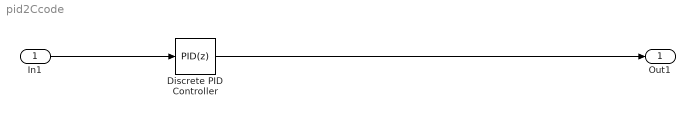
/*
 * File: pid2Ccode.c
 *
 * Code generated for Simulink model 'pid2Ccode'.
 *
 * Model version                  : 1.6
 * Simulink Coder version         : 8.4 (R2013a) 13-Feb-2013
 * TLC version                    : 8.4 (Jan 18 2013)
 * C/C++ source code generated on : Wed Aug 13 07:34:59 2014
 *
 * Target selection: ert.tlc
 * Embedded hardware selection: ARM Compatible->ARM Cortex
 * Code generation objectives: Unspecified
 * Validation result: Not run
 */

#include "pid2Ccode.h"
#include "pid2Ccode_private.h"

/* Block signals (auto storage) */
B_pid2Ccode_T pid2Ccode_B;

/* Block states (auto storage) */
DW_pid2Ccode_T pid2Ccode_DW;

/* External inputs (root inport signals with auto storage) */
ExtU_pid2Ccode_T pid2Ccode_U;

/* External outputs (root outports fed by signals with auto storage) */
ExtY_pid2Ccode_T pid2Ccode_Y;

/* Model step function */
void pid2Ccode_step(void)
{
  /* Gain: '<S1>/Proportional Gain' incorporates:
   *  Inport: '<Root>/In1'
   */
  pid2Ccode_B.ProportionalGain = pid2Ccode_P.ProportionalGain_Gain *
    pid2Ccode_U.In1;

  /* DiscreteIntegrator: '<S1>/Integrator' */
  pid2Ccode_B.Integrator = pid2Ccode_DW.Integrator_DSTATE;

  /* Gain: '<S1>/Derivative Gain' incorporates:
   *  Inport: '<Root>/In1'
   */
  pid2Ccode_B.DerivativeGain = pid2Ccode_P.DerivativeGain_Gain * pid2Ccode_U.In1;

  /* DiscreteIntegrator: '<S1>/Filter' */
  pid2Ccode_B.Filter = pid2Ccode_DW.Filter_DSTATE;

  /* Sum: '<S1>/SumD' */
  pid2Ccode_B.SumD = pid2Ccode_B.DerivativeGain - pid2Ccode_B.Filter;

  /* Gain: '<S1>/Filter Coefficient' */
  pid2Ccode_B.FilterCoefficient = pid2Ccode_P.FilterCoefficient_Gain *
    pid2Ccode_B.SumD;

  /* Outport: '<Root>/Out1' incorporates:
   *  Sum: '<S1>/Sum'
   */
  pid2Ccode_Y.Out1 = (pid2Ccode_B.ProportionalGain + pid2Ccode_B.Integrator) +
    pid2Ccode_B.FilterCoefficient;

  /* Gain: '<S1>/Integral Gain' incorporates:
   *  Inport: '<Root>/In1'
   */
  pid2Ccode_B.IntegralGain = pid2Ccode_P.IntegralGain_Gain * pid2Ccode_U.In1;

  /* Update for DiscreteIntegrator: '<S1>/Integrator' */
  pid2Ccode_DW.Integrator_DSTATE = pid2Ccode_DW.Integrator_DSTATE +
    pid2Ccode_P.Integrator_gainval * pid2Ccode_B.IntegralGain;

  /* Update for DiscreteIntegrator: '<S1>/Filter' */
  pid2Ccode_DW.Filter_DSTATE = pid2Ccode_DW.Filter_DSTATE +
    pid2Ccode_P.Filter_gainval * pid2Ccode_B.FilterCoefficient;
}
